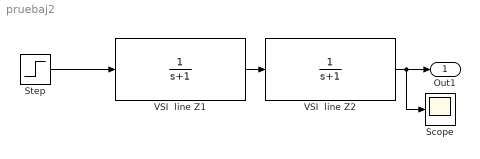
/*
 * File: pruebaj2.c
 *
 * Code generated for Simulink model 'pruebaj2'.
 *
 * Model version                  : 1.73
 * Simulink Coder version         : 8.12 (R2017a) 16-Feb-2017
 * C/C++ source code generated on : Mon Sep 17 15:44:50 2018
 *
 * Target selection: ert.tlc
 * Embedded hardware selection: Intel->x86-64 (Windows64)
 * Code generation objectives: Unspecified
 * Validation result: Not run
 */

#include "pruebaj2.h"
#include "pruebaj2_private.h"

/* Block signals (auto storage) */
B_pruebaj2_T pruebaj2_B;

/* Continuous states */
X_pruebaj2_T pruebaj2_X;

/* External outputs (root outports fed by signals with auto storage) */
ExtY_pruebaj2_T pruebaj2_Y;

/* Real-time model */
RT_MODEL_pruebaj2_T pruebaj2_M_;
RT_MODEL_pruebaj2_T *const pruebaj2_M = &pruebaj2_M_;

/*
 * This function updates continuous states using the ODE4 fixed-step
 * solver algorithm
 */
static void rt_ertODEUpdateContinuousStates(RTWSolverInfo *si )
{
  time_T t = rtsiGetT(si);
  time_T tnew = rtsiGetSolverStopTime(si);
  time_T h = rtsiGetStepSize(si);
  real_T *x = rtsiGetContStates(si);
  ODE4_IntgData *id = (ODE4_IntgData *)rtsiGetSolverData(si);
  real_T *y = id->y;
  real_T *f0 = id->f[0];
  real_T *f1 = id->f[1];
  real_T *f2 = id->f[2];
  real_T *f3 = id->f[3];
  real_T temp;
  int_T i;
  int_T nXc = 2;
  rtsiSetSimTimeStep(si,MINOR_TIME_STEP);

  /* Save the state values at time t in y, we'll use x as ynew. */
  (void) memcpy(y, x,
                (uint_T)nXc*sizeof(real_T));

  /* Assumes that rtsiSetT and ModelOutputs are up-to-date */
  /* f0 = f(t,y) */
  rtsiSetdX(si, f0);
  pruebaj2_derivatives();

  /* f1 = f(t + (h/2), y + (h/2)*f0) */
  temp = 0.5 * h;
  for (i = 0; i < nXc; i++) {
    x[i] = y[i] + (temp*f0[i]);
  }

  rtsiSetT(si, t + temp);
  rtsiSetdX(si, f1);
  pruebaj2_step();
  pruebaj2_derivatives();

  /* f2 = f(t + (h/2), y + (h/2)*f1) */
  for (i = 0; i < nXc; i++) {
    x[i] = y[i] + (temp*f1[i]);
  }

  rtsiSetdX(si, f2);
  pruebaj2_step();
  pruebaj2_derivatives();

  /* f3 = f(t + h, y + h*f2) */
  for (i = 0; i < nXc; i++) {
    x[i] = y[i] + (h*f2[i]);
  }

  rtsiSetT(si, tnew);
  rtsiSetdX(si, f3);
  pruebaj2_step();
  pruebaj2_derivatives();

  /* tnew = t + h
     ynew = y + (h/6)*(f0 + 2*f1 + 2*f2 + 2*f3) */
  temp = h / 6.0;
  for (i = 0; i < nXc; i++) {
    x[i] = y[i] + temp*(f0[i] + 2.0*f1[i] + 2.0*f2[i] + f3[i]);
  }

  rtsiSetSimTimeStep(si,MAJOR_TIME_STEP);
}

/* Model step function */
void pruebaj2_step(void)
{
  if (rtmIsMajorTimeStep(pruebaj2_M)) {
    /* set solver stop time */
    rtsiSetSolverStopTime(&pruebaj2_M->solverInfo,
                          ((pruebaj2_M->Timing.clockTick0+1)*
      pruebaj2_M->Timing.stepSize0));
  }                                    /* end MajorTimeStep */

  /* Update absolute time of base rate at minor time step */
  if (rtmIsMinorTimeStep(pruebaj2_M)) {
    pruebaj2_M->Timing.t[0] = rtsiGetT(&pruebaj2_M->solverInfo);
  }

  /* Outport: '<Root>/Out1' incorporates:
   *  TransferFcn: '<Root>/VSI  line Z2'
   */
  pruebaj2_Y.Out1 = pruebaj2_X.VSIlineZ2_CSTATE;

  /* Step: '<Root>/Step' */
  pruebaj2_B.Step = !(pruebaj2_M->Timing.t[0] < 0.0);

  /* TransferFcn: '<Root>/VSI  line Z1' */
  pruebaj2_B.VSIlineZ1 = 0.0;
  pruebaj2_B.VSIlineZ1 += pruebaj2_X.VSIlineZ1_CSTATE;
  if (rtmIsMajorTimeStep(pruebaj2_M)) {
    rt_ertODEUpdateContinuousStates(&pruebaj2_M->solverInfo);

    /* Update absolute time for base rate */
    /* The "clockTick0" counts the number of times the code of this task has
     * been executed. The absolute time is the multiplication of "clockTick0"
     * and "Timing.stepSize0". Size of "clockTick0" ensures timer will not
     * overflow during the application lifespan selected.
     */
    ++pruebaj2_M->Timing.clockTick0;
    pruebaj2_M->Timing.t[0] = rtsiGetSolverStopTime(&pruebaj2_M->solverInfo);

    {
      /* Update absolute timer for sample time: [0.0001s, 0.0s] */
      /* The "clockTick1" counts the number of times the code of this task has
       * been executed. The resolution of this integer timer is 0.0001, which is the step size
       * of the task. Size of "clockTick1" ensures timer will not overflow during the
       * application lifespan selected.
       */
      pruebaj2_M->Timing.clockTick1++;
    }
  }                                    /* end MajorTimeStep */
}
